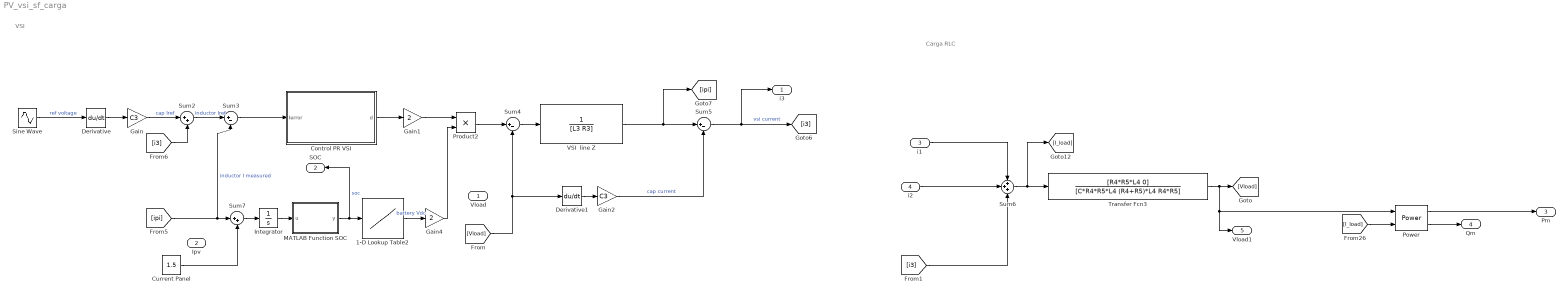
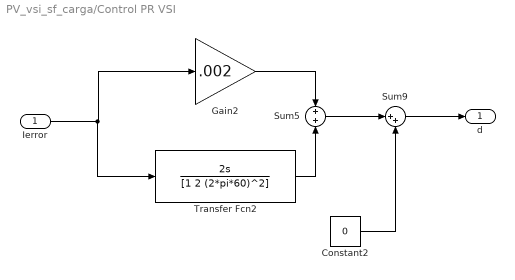
== matlab function PV_vsi_sf_carga/MATLAB Function SOC  ==
function y = fcn(u)

y = -0.03536*u+100;

/*
 * File: PV_vsi_sf_carga.c
 *
 * Code generated for Simulink model 'PV_vsi_sf_carga'.
 *
 * Model version                  : 1.70
 * Simulink Coder version         : 8.12 (R2017a) 16-Feb-2017
 * C/C++ source code generated on : Mon Sep 17 16:17:21 2018
 *
 * Target selection: ert.tlc
 * Embedded hardware selection: Intel->x86-64 (Windows64)
 * Code generation objectives: Unspecified
 * Validation result: Not run
 */

#include "PV_vsi_sf_carga.h"
#include "PV_vsi_sf_carga_private.h"

/* Block signals (auto storage) */
B_PV_vsi_sf_carga_T PV_vsi_sf_carga_B;

/* Continuous states */
X_PV_vsi_sf_carga_T PV_vsi_sf_carga_X;

/* Block states (auto storage) */
DW_PV_vsi_sf_carga_T PV_vsi_sf_carga_DW;

/* External inputs (root inport signals with auto storage) */
ExtU_PV_vsi_sf_carga_T PV_vsi_sf_carga_U;

/* External outputs (root outports fed by signals with auto storage) */
ExtY_PV_vsi_sf_carga_T PV_vsi_sf_carga_Y;

/* Real-time model */
RT_MODEL_PV_vsi_sf_carga_T PV_vsi_sf_carga_M_;
RT_MODEL_PV_vsi_sf_carga_T *const PV_vsi_sf_carga_M = &PV_vsi_sf_carga_M_;

/*
 * Time delay interpolation routine
 *
 * The linear interpolation is performed using the formula:
 *
 *          (t2 - tMinusDelay)         (tMinusDelay - t1)
 * u(t)  =  ----------------- * u1  +  ------------------- * u2
 *              (t2 - t1)                  (t2 - t1)
 */
real_T rt_TDelayInterpolate(
  real_T tMinusDelay,                  /* tMinusDelay = currentSimTime - delay */
  real_T tStart,
  real_T *tBuf,
  real_T *uBuf,
  int_T bufSz,
  int_T *lastIdx,
  int_T oldestIdx,
  int_T newIdx,
  real_T initOutput,
  boolean_T discrete,
  boolean_T minorStepAndTAtLastMajorOutput)
{
  int_T i;
  real_T yout, t1, t2, u1, u2;

  /*
   * If there is only one data point in the buffer, this data point must be
   * the t= 0 and tMinusDelay > t0, it ask for something unknown. The best
   * guess if initial output as well
   */
  if ((newIdx == 0) && (oldestIdx ==0 ) && (tMinusDelay > tStart))
    return initOutput;

  /*
   * If tMinusDelay is less than zero, should output initial value
   */
  if (tMinusDelay <= tStart)
    return initOutput;

  /* For fixed buffer extrapolation:
   * if tMinusDelay is small than the time at oldestIdx, if discrete, output
   * tailptr value,  else use tailptr and tailptr+1 value to extrapolate
   * It is also for fixed buffer. Note: The same condition can happen for transport delay block where
   * use tStart and and t[tail] other than using t[tail] and t[tail+1].
   * See below
   */
  if ((tMinusDelay <= tBuf[oldestIdx] ) ) {
    if (discrete) {
      return(uBuf[oldestIdx]);
    } else {
      int_T tempIdx= oldestIdx + 1;
      if (oldestIdx == bufSz-1)
        tempIdx = 0;
      t1= tBuf[oldestIdx];
      t2= tBuf[tempIdx];
      u1= uBuf[oldestIdx];
      u2= uBuf[tempIdx];
      if (t2 == t1) {
        if (tMinusDelay >= t2) {
          yout = u2;
        } else {
          yout = u1;
        }
      } else {
        real_T f1 = (t2-tMinusDelay) / (t2-t1);
        real_T f2 = 1.0 - f1;

        /*
         * Use Lagrange's interpolation formula.  Exact outputs at t1, t2.
         */
        yout = f1*u1 + f2*u2;
      }

      return yout;
    }
  }

  /*
   * When block does not have direct feedthrough, we use the table of
   * values to extrapolate off the end of the table for delays that are less
   * than 0 (less then step size).  This is not completely accurate.  The
   * chain of events is as follows for a given time t.  Major output - look
   * in table.  Update - add entry to table.  Now, if we call the output at
   * time t again, there is a new entry in the table. For very small delays,
   * this means that we will have a different answer from the previous call
   * to the output fcn at the same time t.  The following code prevents this
   * from happening.
   */
  if (minorStepAndTAtLastMajorOutput) {
    /* pretend that the new entry has not been added to table */
    if (newIdx != 0) {
      if (*lastIdx == newIdx) {
        (*lastIdx)--;
      }

      newIdx--;
    } else {
      if (*lastIdx == newIdx) {
        *lastIdx = bufSz-1;
      }

      newIdx = bufSz - 1;
    }
  }

  i = *lastIdx;
  if (tBuf[i] < tMinusDelay) {
    /* Look forward starting at last index */
    while (tBuf[i] < tMinusDelay) {
      /* May occur if the delay is less than step-size - extrapolate */
      if (i == newIdx)
        break;
      i = ( i < (bufSz-1) ) ? (i+1) : 0;/* move through buffer */
    }
  } else {
    /*
     * Look backwards starting at last index which can happen when the
     * delay time increases.
     */
    while (tBuf[i] >= tMinusDelay) {
      /*
       * Due to the entry condition at top of function, we
       * should never hit the end.
       */
      i = (i > 0) ? i-1 : (bufSz-1);   /* move through buffer */
    }

    i = ( i < (bufSz-1) ) ? (i+1) : 0;
  }

  *lastIdx = i;
  if (discrete) {
    /*
     * tempEps = 128 * eps;
     * localEps = max(tempEps, tempEps*fabs(tBuf[i]))/2;
     */
    double tempEps = (DBL_EPSILON) * 128.0;
    double localEps = tempEps * fabs(tBuf[i]);
    if (tempEps > localEps) {
      localEps = tempEps;
    }

    localEps = localEps / 2.0;
    if (tMinusDelay >= (tBuf[i] - localEps)) {
      yout = uBuf[i];
    } else {
      if (i == 0) {
        yout = uBuf[bufSz-1];
      } else {
        yout = uBuf[i-1];
      }
    }
  } else {
    if (i == 0) {
      t1 = tBuf[bufSz-1];
      u1 = uBuf[bufSz-1];
    } else {
      t1 = tBuf[i-1];
      u1 = uBuf[i-1];
    }

    t2 = tBuf[i];
    u2 = uBuf[i];
    if (t2 == t1) {
      if (tMinusDelay >= t2) {
        yout = u2;
      } else {
        yout = u1;
      }
    } else {
      real_T f1 = (t2-tMinusDelay) / (t2-t1);
      real_T f2 = 1.0 - f1;

      /*
       * Use Lagrange's interpolation formula.  Exact outputs at t1, t2.
       */
      yout = f1*u1 + f2*u2;
    }
  }

  return(yout);
}

real_T look1_binlxpw(real_T u0, const real_T bp0[], const real_T table[],
                     uint32_T maxIndex)
{
  real_T frac;
  uint32_T iRght;
  uint32_T iLeft;
  uint32_T bpIdx;

  /* Lookup 1-D
     Search method: 'binary'
     Use previous index: 'off'
     Interpolation method: 'Linear'
     Extrapolation method: 'Linear'
     Use last breakpoint for index at or above upper limit: 'off'
     Remove protection against out-of-range input in generated code: 'off'
   */
  /* Prelookup - Index and Fraction
     Index Search method: 'binary'
     Extrapolation method: 'Linear'
     Use previous index: 'off'
     Use last breakpoint for index at or above upper limit: 'off'
     Remove protection against out-of-range input in generated code: 'off'
   */
  if (u0 <= bp0[0U]) {
    iLeft = 0U;
    frac = (u0 - bp0[0U]) / (bp0[1U] - bp0[0U]);
  } else if (u0 < bp0[maxIndex]) {
    /* Binary Search */
    bpIdx = maxIndex >> 1U;
    iLeft = 0U;
    iRght = maxIndex;
    while (iRght - iLeft > 1U) {
      if (u0 < bp0[bpIdx]) {
        iRght = bpIdx;
      } else {
        iLeft = bpIdx;
      }

      bpIdx = (iRght + iLeft) >> 1U;
    }

    frac = (u0 - bp0[iLeft]) / (bp0[iLeft + 1U] - bp0[iLeft]);
  } else {
    iLeft = maxIndex - 1U;
    frac = (u0 - bp0[maxIndex - 1U]) / (bp0[maxIndex] - bp0[maxIndex - 1U]);
  }

  /* Interpolation 1-D
     Interpolation method: 'Linear'
     Use last breakpoint for index at or above upper limit: 'off'
     Overflow mode: 'portable wrapping'
   */
  return (table[iLeft + 1U] - table[iLeft]) * frac + table[iLeft];
}

/*
 * This function updates continuous states using the ODE4 fixed-step
 * solver algorithm
 */
static void rt_ertODEUpdateContinuousStates(RTWSolverInfo *si )
{
  time_T t = rtsiGetT(si);
  time_T tnew = rtsiGetSolverStopTime(si);
  time_T h = rtsiGetStepSize(si);
  real_T *x = rtsiGetContStates(si);
  ODE4_IntgData *id = (ODE4_IntgData *)rtsiGetSolverData(si);
  real_T *y = id->y;
  real_T *f0 = id->f[0];
  real_T *f1 = id->f[1];
  real_T *f2 = id->f[2];
  real_T *f3 = id->f[3];
  real_T temp;
  int_T i;
  int_T nXc = 10;
  rtsiSetSimTimeStep(si,MINOR_TIME_STEP);

  /* Save the state values at time t in y, we'll use x as ynew. */
  (void) memcpy(y, x,
                (uint_T)nXc*sizeof(real_T));

  /* Assumes that rtsiSetT and ModelOutputs are up-to-date */
  /* f0 = f(t,y) */
  rtsiSetdX(si, f0);
  PV_vsi_sf_carga_derivatives();

  /* f1 = f(t + (h/2), y + (h/2)*f0) */
  temp = 0.5 * h;
  for (i = 0; i < nXc; i++) {
    x[i] = y[i] + (temp*f0[i]);
  }

  rtsiSetT(si, t + temp);
  rtsiSetdX(si, f1);
  PV_vsi_sf_carga_step();
  PV_vsi_sf_carga_derivatives();

  /* f2 = f(t + (h/2), y + (h/2)*f1) */
  for (i = 0; i < nXc; i++) {
    x[i] = y[i] + (temp*f1[i]);
  }

  rtsiSetdX(si, f2);
  PV_vsi_sf_carga_step();
  PV_vsi_sf_carga_derivatives();

  /* f3 = f(t + h, y + h*f2) */
  for (i = 0; i < nXc; i++) {
    x[i] = y[i] + (h*f2[i]);
  }

  rtsiSetT(si, tnew);
  rtsiSetdX(si, f3);
  PV_vsi_sf_carga_step();
  PV_vsi_sf_carga_derivatives();

  /* tnew = t + h
     ynew = y + (h/6)*(f0 + 2*f1 + 2*f2 + 2*f3) */
  temp = h / 6.0;
  for (i = 0; i < nXc; i++) {
    x[i] = y[i] + temp*(f0[i] + 2.0*f1[i] + 2.0*f2[i] + f3[i]);
  }

  rtsiSetSimTimeStep(si,MAJOR_TIME_STEP);
}

real_T rt_hypotd_snf(real_T u0, real_T u1)
{
  real_T y;
  real_T a;
  a = fabs(u0);
  y = fabs(u1);
  if (a < y) {
    a /= y;
    y *= sqrt(a * a + 1.0);
  } else if (a > y) {
    y /= a;
    y = sqrt(y * y + 1.0) * a;
  } else {
    if (!rtIsNaN(y)) {
      y = a * 1.4142135623730951;
    }
  }

  return y;
}

real_T rt_atan2d_snf(real_T u0, real_T u1)
{
  real_T y;
  int32_T u0_0;
  int32_T u1_0;
  if (rtIsNaN(u0) || rtIsNaN(u1)) {
    y = (rtNaN);
  } else if (rtIsInf(u0) && rtIsInf(u1)) {
    if (u0 > 0.0) {
      u0_0 = 1;
    } else {
      u0_0 = -1;
    }

    if (u1 > 0.0) {
      u1_0 = 1;
    } else {
      u1_0 = -1;
    }

    y = atan2(u0_0, u1_0);
  } else if (u1 == 0.0) {
    if (u0 > 0.0) {
      y = RT_PI / 2.0;
    } else if (u0 < 0.0) {
      y = -(RT_PI / 2.0);
    } else {
      y = 0.0;
    }
  } else {
    y = atan2(u0, u1);
  }

  return y;
}

/* Model step function */
void PV_vsi_sf_carga_step(void)
{
  /* local block i/o variables */
  real_T rtb_integrator;
  real_T rtb_TransportDelay;
  real_T rtb_integrator_m;
  real_T rtb_TransportDelay_g;
  real_T rtb_integrator_e;
  real_T rtb_TransportDelay_d;
  real_T rtb_integrator_o;
  real_T rtb_TransportDelay_e;
  if (rtmIsMajorTimeStep(PV_vsi_sf_carga_M)) {
    /* set solver stop time */
    rtsiSetSolverStopTime(&PV_vsi_sf_carga_M->solverInfo,
                          ((PV_vsi_sf_carga_M->Timing.clockTick0+1)*
      PV_vsi_sf_carga_M->Timing.stepSize0));
  }                                    /* end MajorTimeStep */

  /* Update absolute time of base rate at minor time step */
  if (rtmIsMinorTimeStep(PV_vsi_sf_carga_M)) {
    PV_vsi_sf_carga_M->Timing.t[0] = rtsiGetT(&PV_vsi_sf_carga_M->solverInfo);
  }

  {
    real_T *lastU;
    real_T rtb_vsicurrent;
    real_T rtb_VSIlineZ;
    real_T rtb_y;
    real_T rtb_ComplextoMagnitudeAngle_o1;
    real_T rtb_ComplextoMagnitudeAngle_o2;

    /* TransferFcn: '<Root>/VSI  line Z' */
    rtb_VSIlineZ = 33.333333333333336 * PV_vsi_sf_carga_X.VSIlineZ_CSTATE;

    /* TransferFcn: '<Root>/Transfer Fcn3' */
    PV_vsi_sf_carga_B.TransferFcn3 = 0.0;
    PV_vsi_sf_carga_B.TransferFcn3 += 376.7897513187641 *
      PV_vsi_sf_carga_X.TransferFcn3_CSTATE[0];
    PV_vsi_sf_carga_B.TransferFcn3 += 0.0 *
      PV_vsi_sf_carga_X.TransferFcn3_CSTATE[1];

    /* Derivative: '<Root>/Derivative1' */
    if ((PV_vsi_sf_carga_DW.TimeStampA >= PV_vsi_sf_carga_M->Timing.t[0]) &&
        (PV_vsi_sf_carga_DW.TimeStampB >= PV_vsi_sf_carga_M->Timing.t[0])) {
      rtb_vsicurrent = 0.0;
    } else {
      rtb_ComplextoMagnitudeAngle_o2 = PV_vsi_sf_carga_DW.TimeStampA;
      lastU = &PV_vsi_sf_carga_DW.LastUAtTimeA;
      if (PV_vsi_sf_carga_DW.TimeStampA < PV_vsi_sf_carga_DW.TimeStampB) {
        if (PV_vsi_sf_carga_DW.TimeStampB < PV_vsi_sf_carga_M->Timing.t[0]) {
          rtb_ComplextoMagnitudeAngle_o2 = PV_vsi_sf_carga_DW.TimeStampB;
          lastU = &PV_vsi_sf_carga_DW.LastUAtTimeB;
        }
      } else {
        if (PV_vsi_sf_carga_DW.TimeStampA >= PV_vsi_sf_carga_M->Timing.t[0]) {
          rtb_ComplextoMagnitudeAngle_o2 = PV_vsi_sf_carga_DW.TimeStampB;
          lastU = &PV_vsi_sf_carga_DW.LastUAtTimeB;
        }
      }

      rtb_vsicurrent = (PV_vsi_sf_carga_B.TransferFcn3 - *lastU) /
        (PV_vsi_sf_carga_M->Timing.t[0] - rtb_ComplextoMagnitudeAngle_o2);
    }

    /* End of Derivative: '<Root>/Derivative1' */

    /* Sum: '<Root>/Sum5' incorporates:
     *  Gain: '<Root>/Gain2'
     */
    rtb_vsicurrent = rtb_VSIlineZ - 0.00061 * rtb_vsicurrent;

    /* Outport: '<Root>/i3' */
    PV_vsi_sf_carga_Y.i3 = rtb_vsicurrent;

    /* Integrator: '<Root>/Integrator' */
    /* Limited  Integrator  */
    if (PV_vsi_sf_carga_X.Integrator_CSTATE >= 1.0) {
      PV_vsi_sf_carga_X.Integrator_CSTATE = 1.0;
    } else {
      if (PV_vsi_sf_carga_X.Integrator_CSTATE <= 0.0) {
        PV_vsi_sf_carga_X.Integrator_CSTATE = 0.0;
      }
    }

    /* MATLAB Function: '<Root>/MATLAB Function SOC ' incorporates:
     *  Integrator: '<Root>/Integrator'
     */
    /* MATLAB Function 'MATLAB Function SOC ': '<S2>:1' */
    /* '<S2>:1:3' y = -0.03536*u+100; */
    rtb_y = -0.03536 * PV_vsi_sf_carga_X.Integrator_CSTATE + 100.0;

    /* Outport: '<Root>/SOC' */
    PV_vsi_sf_carga_Y.SOC = rtb_y;

    /* Integrator: '<S9>/integrator' */
    rtb_integrator = PV_vsi_sf_carga_X.integrator_CSTATE;

    /* TransportDelay: '<S9>/Transport Delay' */
    {
      real_T **uBuffer = (real_T**)
        &PV_vsi_sf_carga_DW.TransportDelay_PWORK.TUbufferPtrs[0];
      real_T **tBuffer = (real_T**)
        &PV_vsi_sf_carga_DW.TransportDelay_PWORK.TUbufferPtrs[1];
      real_T simTime = PV_vsi_sf_carga_M->Timing.t[0];
      real_T tMinusDelay = simTime - (0.016666666666666666);
      rtb_TransportDelay = rt_TDelayInterpolate(
        tMinusDelay,
        0.0,
        *tBuffer,
        *uBuffer,
        PV_vsi_sf_carga_DW.TransportDelay_IWORK.CircularBufSize,
        &PV_vsi_sf_carga_DW.TransportDelay_IWORK.Last,
        PV_vsi_sf_carga_DW.TransportDelay_IWORK.Tail,
        PV_vsi_sf_carga_DW.TransportDelay_IWORK.Head,
        0.0,
        0,
        0);
    }

    if (rtmIsMajorTimeStep(PV_vsi_sf_carga_M)) {
      /* Memory: '<S9>/Memory' */
      PV_vsi_sf_carga_B.Memory = PV_vsi_sf_carga_DW.Memory_PreviousInput;
    }

    /* Switch: '<S9>/Switch' incorporates:
     *  Clock: '<S9>/Clock'
     *  Constant: '<S9>/K1'
     *  Gain: '<S9>/Gain'
     *  RelationalOperator: '<S9>/Relational Operator'
     *  Sum: '<S9>/Sum'
     */
    if (PV_vsi_sf_carga_M->Timing.t[0] >= 0.016666666666666666) {
      PV_vsi_sf_carga_B.Switch = (rtb_integrator - rtb_TransportDelay) * 60.0;
    } else {
      PV_vsi_sf_carga_B.Switch = PV_vsi_sf_carga_B.Memory;
    }

    /* End of Switch: '<S9>/Switch' */

    /* Integrator: '<S8>/integrator' */
    rtb_integrator_m = PV_vsi_sf_carga_X.integrator_CSTATE_c;

    /* TransportDelay: '<S8>/Transport Delay' */
    {
      real_T **uBuffer = (real_T**)
        &PV_vsi_sf_carga_DW.TransportDelay_PWORK_g.TUbufferPtrs[0];
      real_T **tBuffer = (real_T**)
        &PV_vsi_sf_carga_DW.TransportDelay_PWORK_g.TUbufferPtrs[1];
      real_T simTime = PV_vsi_sf_carga_M->Timing.t[0];
      real_T tMinusDelay = simTime - (0.016666666666666666);
      rtb_TransportDelay_g = rt_TDelayInterpolate(
        tMinusDelay,
        0.0,
        *tBuffer,
        *uBuffer,
        PV_vsi_sf_carga_DW.TransportDelay_IWORK_n.CircularBufSize,
        &PV_vsi_sf_carga_DW.TransportDelay_IWORK_n.Last,
        PV_vsi_sf_carga_DW.TransportDelay_IWORK_n.Tail,
        PV_vsi_sf_carga_DW.TransportDelay_IWORK_n.Head,
        0.0,
        0,
        0);
    }

    if (rtmIsMajorTimeStep(PV_vsi_sf_carga_M)) {
      /* Memory: '<S8>/Memory' */
      PV_vsi_sf_carga_B.Memory_f = PV_vsi_sf_carga_DW.Memory_PreviousInput_j;
    }

    /* Switch: '<S8>/Switch' incorporates:
     *  Clock: '<S8>/Clock'
     *  Constant: '<S8>/K1'
     *  Gain: '<S8>/Gain'
     *  RelationalOperator: '<S8>/Relational Operator'
     *  Sum: '<S8>/Sum'
     */
    if (PV_vsi_sf_carga_M->Timing.t[0] >= 0.016666666666666666) {
      PV_vsi_sf_carga_B.Switch_c = (rtb_integrator_m - rtb_TransportDelay_g) *
        60.0;
    } else {
      PV_vsi_sf_carga_B.Switch_c = PV_vsi_sf_carga_B.Memory_f;
    }

    /* End of Switch: '<S8>/Switch' */

    /* Integrator: '<S13>/integrator' */
    rtb_integrator_e = PV_vsi_sf_carga_X.integrator_CSTATE_i;

    /* TransportDelay: '<S13>/Transport Delay' */
    {
      real_T **uBuffer = (real_T**)
        &PV_vsi_sf_carga_DW.TransportDelay_PWORK_f.TUbufferPtrs[0];
      real_T **tBuffer = (real_T**)
        &PV_vsi_sf_carga_DW.TransportDelay_PWORK_f.TUbufferPtrs[1];
      real_T simTime = PV_vsi_sf_carga_M->Timing.t[0];
      real_T tMinusDelay = simTime - (0.016666666666666666);
      rtb_TransportDelay_d = rt_TDelayInterpolate(
        tMinusDelay,
        0.0,
        *tBuffer,
        *uBuffer,
        PV_vsi_sf_carga_DW.TransportDelay_IWORK_ng.CircularBufSize,
        &PV_vsi_sf_carga_DW.TransportDelay_IWORK_ng.Last,
        PV_vsi_sf_carga_DW.TransportDelay_IWORK_ng.Tail,
        PV_vsi_sf_carga_DW.TransportDelay_IWORK_ng.Head,
        0.0,
        0,
        0);
    }

    if (rtmIsMajorTimeStep(PV_vsi_sf_carga_M)) {
      /* Memory: '<S13>/Memory' */
      PV_vsi_sf_carga_B.Memory_j = PV_vsi_sf_carga_DW.Memory_PreviousInput_i;
    }

    /* Switch: '<S13>/Switch' incorporates:
     *  Clock: '<S13>/Clock'
     *  Constant: '<S13>/K1'
     *  Gain: '<S13>/Gain'
     *  RelationalOperator: '<S13>/Relational Operator'
     *  Sum: '<S13>/Sum'
     */
    if (PV_vsi_sf_carga_M->Timing.t[0] >= 0.016666666666666666) {
      PV_vsi_sf_carga_B.Switch_k = (rtb_integrator_e - rtb_TransportDelay_d) *
        60.0;
    } else {
      PV_vsi_sf_carga_B.Switch_k = PV_vsi_sf_carga_B.Memory_j;
    }

    /* End of Switch: '<S13>/Switch' */

    /* Integrator: '<S12>/integrator' */
    rtb_integrator_o = PV_vsi_sf_carga_X.integrator_CSTATE_b;

    /* TransportDelay: '<S12>/Transport Delay' */
    {
      real_T **uBuffer = (real_T**)
        &PV_vsi_sf_carga_DW.TransportDelay_PWORK_n.TUbufferPtrs[0];
      real_T **tBuffer = (real_T**)
        &PV_vsi_sf_carga_DW.TransportDelay_PWORK_n.TUbufferPtrs[1];
      real_T simTime = PV_vsi_sf_carga_M->Timing.t[0];
      real_T tMinusDelay = simTime - (0.016666666666666666);
      rtb_TransportDelay_e = rt_TDelayInterpolate(
        tMinusDelay,
        0.0,
        *tBuffer,
        *uBuffer,
        PV_vsi_sf_carga_DW.TransportDelay_IWORK_d.CircularBufSize,
        &PV_vsi_sf_carga_DW.TransportDelay_IWORK_d.Last,
        PV_vsi_sf_carga_DW.TransportDelay_IWORK_d.Tail,
        PV_vsi_sf_carga_DW.TransportDelay_IWORK_d.Head,
        0.0,
        0,
        0);
    }

    if (rtmIsMajorTimeStep(PV_vsi_sf_carga_M)) {
      /* Memory: '<S12>/Memory' */
      PV_vsi_sf_carga_B.Memory_m = PV_vsi_sf_carga_DW.Memory_PreviousInput_n;
    }

    /* Switch: '<S12>/Switch' incorporates:
     *  Clock: '<S12>/Clock'
     *  Constant: '<S12>/K1'
     *  Gain: '<S12>/Gain'
     *  RelationalOperator: '<S12>/Relational Operator'
     *  Sum: '<S12>/Sum'
     */
    if (PV_vsi_sf_carga_M->Timing.t[0] >= 0.016666666666666666) {
      PV_vsi_sf_carga_B.Switch_o = (rtb_integrator_o - rtb_TransportDelay_e) *
        60.0;
    } else {
      PV_vsi_sf_carga_B.Switch_o = PV_vsi_sf_carga_B.Memory_m;
    }

    /* End of Switch: '<S12>/Switch' */

    /* Gain: '<S3>/Gain1' incorporates:
     *  ComplexToMagnitudeAngle: '<S4>/Complex to Magnitude-Angle'
     *  ComplexToMagnitudeAngle: '<S5>/Complex to Magnitude-Angle'
     *  Product: '<S3>/Product'
     *  RealImagToComplex: '<S4>/Real-Imag to Complex'
     *  RealImagToComplex: '<S5>/Real-Imag to Complex'
     */
    rtb_ComplextoMagnitudeAngle_o1 = rt_hypotd_snf(PV_vsi_sf_carga_B.Switch,
      PV_vsi_sf_carga_B.Switch_c) * rt_hypotd_snf(PV_vsi_sf_carga_B.Switch_k,
      PV_vsi_sf_carga_B.Switch_o) * 0.5;

    /* Gain: '<S3>/Deg->Rad' incorporates:
     *  ComplexToMagnitudeAngle: '<S4>/Complex to Magnitude-Angle'
     *  ComplexToMagnitudeAngle: '<S5>/Complex to Magnitude-Angle'
     *  Gain: '<S4>/Rad->Deg.'
     *  Gain: '<S5>/Rad->Deg.'
     *  RealImagToComplex: '<S4>/Real-Imag to Complex'
     *  RealImagToComplex: '<S5>/Real-Imag to Complex'
     *  Sum: '<S3>/Sum'
     */
    rtb_ComplextoMagnitudeAngle_o2 = (57.295779513082323 * rt_atan2d_snf
      (PV_vsi_sf_carga_B.Switch_c, PV_vsi_sf_carga_B.Switch) -
      57.295779513082323 * rt_atan2d_snf(PV_vsi_sf_carga_B.Switch_o,
      PV_vsi_sf_carga_B.Switch_k)) * 0.017453292519943295;

    /* Outport: '<Root>/Pm' incorporates:
     *  Product: '<S3>/Product1'
     *  Trigonometry: '<S3>/Trigonometric Function1'
     */
    PV_vsi_sf_carga_Y.Pm = rtb_ComplextoMagnitudeAngle_o1 * cos
      (rtb_ComplextoMagnitudeAngle_o2);

    /* Outport: '<Root>/Qm' incorporates:
     *  Product: '<S3>/Product3'
     *  Trigonometry: '<S3>/Trigonometric Function2'
     */
    PV_vsi_sf_carga_Y.Qm = rtb_ComplextoMagnitudeAngle_o1 * sin
      (rtb_ComplextoMagnitudeAngle_o2);

    /* Outport: '<Root>/Vload1' */
    PV_vsi_sf_carga_Y.Vload1 = PV_vsi_sf_carga_B.TransferFcn3;

    /* Sin: '<Root>/Sine Wave' */
    PV_vsi_sf_carga_B.refvoltage = sin(376.99111843077515 *
      PV_vsi_sf_carga_M->Timing.t[0]) * 170.0;

    /* Derivative: '<Root>/Derivative' */
    if ((PV_vsi_sf_carga_DW.TimeStampA_e >= PV_vsi_sf_carga_M->Timing.t[0]) &&
        (PV_vsi_sf_carga_DW.TimeStampB_a >= PV_vsi_sf_carga_M->Timing.t[0])) {
      rtb_ComplextoMagnitudeAngle_o1 = 0.0;
    } else {
      rtb_ComplextoMagnitudeAngle_o2 = PV_vsi_sf_carga_DW.TimeStampA_e;
      lastU = &PV_vsi_sf_carga_DW.LastUAtTimeA_n;
      if (PV_vsi_sf_carga_DW.TimeStampA_e < PV_vsi_sf_carga_DW.TimeStampB_a) {
        if (PV_vsi_sf_carga_DW.TimeStampB_a < PV_vsi_sf_carga_M->Timing.t[0]) {
          rtb_ComplextoMagnitudeAngle_o2 = PV_vsi_sf_carga_DW.TimeStampB_a;
          lastU = &PV_vsi_sf_carga_DW.LastUAtTimeB_c;
        }
      } else {
        if (PV_vsi_sf_carga_DW.TimeStampA_e >= PV_vsi_sf_carga_M->Timing.t[0]) {
          rtb_ComplextoMagnitudeAngle_o2 = PV_vsi_sf_carga_DW.TimeStampB_a;
          lastU = &PV_vsi_sf_carga_DW.LastUAtTimeB_c;
        }
      }

      rtb_ComplextoMagnitudeAngle_o1 = (PV_vsi_sf_carga_B.refvoltage - *lastU) /
        (PV_vsi_sf_carga_M->Timing.t[0] - rtb_ComplextoMagnitudeAngle_o2);
    }

    /* End of Derivative: '<Root>/Derivative' */

    /* Sum: '<Root>/Sum3' incorporates:
     *  Gain: '<Root>/Gain'
     *  Sum: '<Root>/Sum2'
     */
    PV_vsi_sf_carga_B.Sum3 = (0.00061 * rtb_ComplextoMagnitudeAngle_o1 +
      rtb_vsicurrent) - rtb_VSIlineZ;

    /* Product: '<S4>/Product' incorporates:
     *  Sin: '<S4>/sin(wt)'
     */
    PV_vsi_sf_carga_B.Product = sin(376.99111843077515 *
      PV_vsi_sf_carga_M->Timing.t[0]) * 2.0 * PV_vsi_sf_carga_B.TransferFcn3;

    /* Product: '<S4>/Product1' incorporates:
     *  Sin: '<S4>/cos(wt)'
     */
    PV_vsi_sf_carga_B.Product1 = sin(376.99111843077515 *
      PV_vsi_sf_carga_M->Timing.t[0] + 1.5707963267948966) * 2.0 *
      PV_vsi_sf_carga_B.TransferFcn3;

    /* Sum: '<Root>/Sum6' incorporates:
     *  Inport: '<Root>/i1'
     *  Inport: '<Root>/i2'
     */
    PV_vsi_sf_carga_B.Sum6 = (PV_vsi_sf_carga_U.i1 + PV_vsi_sf_carga_U.i2) +
      rtb_vsicurrent;

    /* Product: '<S5>/Product' incorporates:
     *  Sin: '<S5>/sin(wt)'
     */
    PV_vsi_sf_carga_B.Product_c = sin(376.99111843077515 *
      PV_vsi_sf_carga_M->Timing.t[0]) * 2.0 * PV_vsi_sf_carga_B.Sum6;

    /* Product: '<S5>/Product1' incorporates:
     *  Sin: '<S5>/cos(wt)'
     */
    PV_vsi_sf_carga_B.Product1_g = sin(376.99111843077515 *
      PV_vsi_sf_carga_M->Timing.t[0] + 1.5707963267948966) * 2.0 *
      PV_vsi_sf_carga_B.Sum6;

    /* Sum: '<Root>/Sum4' incorporates:
     *  Gain: '<Root>/Gain1'
     *  Gain: '<Root>/Gain4'
     *  Gain: '<S1>/Gain2'
     *  Lookup_n-D: '<Root>/1-D Lookup Table2'
     *  Product: '<Root>/Product2'
     *  Sum: '<S1>/Sum5'
     *  TransferFcn: '<S1>/Transfer Fcn2'
     */
    PV_vsi_sf_carga_B.Sum4 = ((2.0 * PV_vsi_sf_carga_X.TransferFcn2_CSTATE[0] +
      0.0 * PV_vsi_sf_carga_X.TransferFcn2_CSTATE[1]) + 0.002 *
      PV_vsi_sf_carga_B.Sum3) * 2.0 * (2.0 * look1_binlxpw(rtb_y,
      PV_vsi_sf_carga_ConstP.uDLookupTable2_bp01Data,
      PV_vsi_sf_carga_ConstP.uDLookupTable2_tableData, 8U)) -
      PV_vsi_sf_carga_B.TransferFcn3;

    /* Sum: '<Root>/Sum7' incorporates:
     *  Constant: '<Root>/Current Panel'
     */
    PV_vsi_sf_carga_B.Sum7 = rtb_VSIlineZ + 1.5;
  }

  if (rtmIsMajorTimeStep(PV_vsi_sf_carga_M)) {
    real_T *lastU;

    /* Update for Derivative: '<Root>/Derivative1' */
    if (PV_vsi_sf_carga_DW.TimeStampA == (rtInf)) {
      PV_vsi_sf_carga_DW.TimeStampA = PV_vsi_sf_carga_M->Timing.t[0];
      lastU = &PV_vsi_sf_carga_DW.LastUAtTimeA;
    } else if (PV_vsi_sf_carga_DW.TimeStampB == (rtInf)) {
      PV_vsi_sf_carga_DW.TimeStampB = PV_vsi_sf_carga_M->Timing.t[0];
      lastU = &PV_vsi_sf_carga_DW.LastUAtTimeB;
    } else if (PV_vsi_sf_carga_DW.TimeStampA < PV_vsi_sf_carga_DW.TimeStampB) {
      PV_vsi_sf_carga_DW.TimeStampA = PV_vsi_sf_carga_M->Timing.t[0];
      lastU = &PV_vsi_sf_carga_DW.LastUAtTimeA;
    } else {
      PV_vsi_sf_carga_DW.TimeStampB = PV_vsi_sf_carga_M->Timing.t[0];
      lastU = &PV_vsi_sf_carga_DW.LastUAtTimeB;
    }

    *lastU = PV_vsi_sf_carga_B.TransferFcn3;

    /* End of Update for Derivative: '<Root>/Derivative1' */

    /* Update for TransportDelay: '<S9>/Transport Delay' */
    {
      real_T **uBuffer = (real_T**)
        &PV_vsi_sf_carga_DW.TransportDelay_PWORK.TUbufferPtrs[0];
      real_T **tBuffer = (real_T**)
        &PV_vsi_sf_carga_DW.TransportDelay_PWORK.TUbufferPtrs[1];
      real_T simTime = PV_vsi_sf_carga_M->Timing.t[0];
      PV_vsi_sf_carga_DW.TransportDelay_IWORK.Head =
        ((PV_vsi_sf_carga_DW.TransportDelay_IWORK.Head <
          (PV_vsi_sf_carga_DW.TransportDelay_IWORK.CircularBufSize-1)) ?
         (PV_vsi_sf_carga_DW.TransportDelay_IWORK.Head+1) : 0);
      if (PV_vsi_sf_carga_DW.TransportDelay_IWORK.Head ==
          PV_vsi_sf_carga_DW.TransportDelay_IWORK.Tail) {
        PV_vsi_sf_carga_DW.TransportDelay_IWORK.Tail =
          ((PV_vsi_sf_carga_DW.TransportDelay_IWORK.Tail <
            (PV_vsi_sf_carga_DW.TransportDelay_IWORK.CircularBufSize-1)) ?
           (PV_vsi_sf_carga_DW.TransportDelay_IWORK.Tail+1) : 0);
      }

      (*tBuffer)[PV_vsi_sf_carga_DW.TransportDelay_IWORK.Head] = simTime;
      (*uBuffer)[PV_vsi_sf_carga_DW.TransportDelay_IWORK.Head] = rtb_integrator;
    }

    if (rtmIsMajorTimeStep(PV_vsi_sf_carga_M)) {
      /* Update for Memory: '<S9>/Memory' */
      PV_vsi_sf_carga_DW.Memory_PreviousInput = PV_vsi_sf_carga_B.Switch;
    }

    /* Update for TransportDelay: '<S8>/Transport Delay' */
    {
      real_T **uBuffer = (real_T**)
        &PV_vsi_sf_carga_DW.TransportDelay_PWORK_g.TUbufferPtrs[0];
      real_T **tBuffer = (real_T**)
        &PV_vsi_sf_carga_DW.TransportDelay_PWORK_g.TUbufferPtrs[1];
      real_T simTime = PV_vsi_sf_carga_M->Timing.t[0];
      PV_vsi_sf_carga_DW.TransportDelay_IWORK_n.Head =
        ((PV_vsi_sf_carga_DW.TransportDelay_IWORK_n.Head <
          (PV_vsi_sf_carga_DW.TransportDelay_IWORK_n.CircularBufSize-1)) ?
         (PV_vsi_sf_carga_DW.TransportDelay_IWORK_n.Head+1) : 0);
      if (PV_vsi_sf_carga_DW.TransportDelay_IWORK_n.Head ==
          PV_vsi_sf_carga_DW.TransportDelay_IWORK_n.Tail) {
        PV_vsi_sf_carga_DW.TransportDelay_IWORK_n.Tail =
          ((PV_vsi_sf_carga_DW.TransportDelay_IWORK_n.Tail <
            (PV_vsi_sf_carga_DW.TransportDelay_IWORK_n.CircularBufSize-1)) ?
           (PV_vsi_sf_carga_DW.TransportDelay_IWORK_n.Tail+1) : 0);
      }

      (*tBuffer)[PV_vsi_sf_carga_DW.TransportDelay_IWORK_n.Head] = simTime;
      (*uBuffer)[PV_vsi_sf_carga_DW.TransportDelay_IWORK_n.Head] =
        rtb_integrator_m;
    }

    if (rtmIsMajorTimeStep(PV_vsi_sf_carga_M)) {
      /* Update for Memory: '<S8>/Memory' */
      PV_vsi_sf_carga_DW.Memory_PreviousInput_j = PV_vsi_sf_carga_B.Switch_c;
    }

    /* Update for TransportDelay: '<S13>/Transport Delay' */
    {
      real_T **uBuffer = (real_T**)
        &PV_vsi_sf_carga_DW.TransportDelay_PWORK_f.TUbufferPtrs[0];
      real_T **tBuffer = (real_T**)
        &PV_vsi_sf_carga_DW.TransportDelay_PWORK_f.TUbufferPtrs[1];
      real_T simTime = PV_vsi_sf_carga_M->Timing.t[0];
      PV_vsi_sf_carga_DW.TransportDelay_IWORK_ng.Head =
        ((PV_vsi_sf_carga_DW.TransportDelay_IWORK_ng.Head <
          (PV_vsi_sf_carga_DW.TransportDelay_IWORK_ng.CircularBufSize-1)) ?
         (PV_vsi_sf_carga_DW.TransportDelay_IWORK_ng.Head+1) : 0);
      if (PV_vsi_sf_carga_DW.TransportDelay_IWORK_ng.Head ==
          PV_vsi_sf_carga_DW.TransportDelay_IWORK_ng.Tail) {
        PV_vsi_sf_carga_DW.TransportDelay_IWORK_ng.Tail =
          ((PV_vsi_sf_carga_DW.TransportDelay_IWORK_ng.Tail <
            (PV_vsi_sf_carga_DW.TransportDelay_IWORK_ng.CircularBufSize-1)) ?
           (PV_vsi_sf_carga_DW.TransportDelay_IWORK_ng.Tail+1) : 0);
      }

      (*tBuffer)[PV_vsi_sf_carga_DW.TransportDelay_IWORK_ng.Head] = simTime;
      (*uBuffer)[PV_vsi_sf_carga_DW.TransportDelay_IWORK_ng.Head] =
        rtb_integrator_e;
    }

    if (rtmIsMajorTimeStep(PV_vsi_sf_carga_M)) {
      /* Update for Memory: '<S13>/Memory' */
      PV_vsi_sf_carga_DW.Memory_PreviousInput_i = PV_vsi_sf_carga_B.Switch_k;
    }

    /* Update for TransportDelay: '<S12>/Transport Delay' */
    {
      real_T **uBuffer = (real_T**)
        &PV_vsi_sf_carga_DW.TransportDelay_PWORK_n.TUbufferPtrs[0];
      real_T **tBuffer = (real_T**)
        &PV_vsi_sf_carga_DW.TransportDelay_PWORK_n.TUbufferPtrs[1];
      real_T simTime = PV_vsi_sf_carga_M->Timing.t[0];
      PV_vsi_sf_carga_DW.TransportDelay_IWORK_d.Head =
        ((PV_vsi_sf_carga_DW.TransportDelay_IWORK_d.Head <
          (PV_vsi_sf_carga_DW.TransportDelay_IWORK_d.CircularBufSize-1)) ?
         (PV_vsi_sf_carga_DW.TransportDelay_IWORK_d.Head+1) : 0);
      if (PV_vsi_sf_carga_DW.TransportDelay_IWORK_d.Head ==
          PV_vsi_sf_carga_DW.TransportDelay_IWORK_d.Tail) {
        PV_vsi_sf_carga_DW.TransportDelay_IWORK_d.Tail =
          ((PV_vsi_sf_carga_DW.TransportDelay_IWORK_d.Tail <
            (PV_vsi_sf_carga_DW.TransportDelay_IWORK_d.CircularBufSize-1)) ?
           (PV_vsi_sf_carga_DW.TransportDelay_IWORK_d.Tail+1) : 0);
      }

      (*tBuffer)[PV_vsi_sf_carga_DW.TransportDelay_IWORK_d.Head] = simTime;
      (*uBuffer)[PV_vsi_sf_carga_DW.TransportDelay_IWORK_d.Head] =
        rtb_integrator_o;
    }

    if (rtmIsMajorTimeStep(PV_vsi_sf_carga_M)) {
      /* Update for Memory: '<S12>/Memory' */
      PV_vsi_sf_carga_DW.Memory_PreviousInput_n = PV_vsi_sf_carga_B.Switch_o;
    }

    /* Update for Derivative: '<Root>/Derivative' */
    if (PV_vsi_sf_carga_DW.TimeStampA_e == (rtInf)) {
      PV_vsi_sf_carga_DW.TimeStampA_e = PV_vsi_sf_carga_M->Timing.t[0];
      lastU = &PV_vsi_sf_carga_DW.LastUAtTimeA_n;
    } else if (PV_vsi_sf_carga_DW.TimeStampB_a == (rtInf)) {
      PV_vsi_sf_carga_DW.TimeStampB_a = PV_vsi_sf_carga_M->Timing.t[0];
      lastU = &PV_vsi_sf_carga_DW.LastUAtTimeB_c;
    } else if (PV_vsi_sf_carga_DW.TimeStampA_e < PV_vsi_sf_carga_DW.TimeStampB_a)
    {
      PV_vsi_sf_carga_DW.TimeStampA_e = PV_vsi_sf_carga_M->Timing.t[0];
      lastU = &PV_vsi_sf_carga_DW.LastUAtTimeA_n;
    } else {
      PV_vsi_sf_carga_DW.TimeStampB_a = PV_vsi_sf_carga_M->Timing.t[0];
      lastU = &PV_vsi_sf_carga_DW.LastUAtTimeB_c;
    }

    *lastU = PV_vsi_sf_carga_B.refvoltage;

    /* End of Update for Derivative: '<Root>/Derivative' */
  }                                    /* end MajorTimeStep */

  if (rtmIsMajorTimeStep(PV_vsi_sf_carga_M)) {
    rt_ertODEUpdateContinuousStates(&PV_vsi_sf_carga_M->solverInfo);

    /* Update absolute time for base rate */
    /* The "clockTick0" counts the number of times the code of this task has
     * been executed. The absolute time is the multiplication of "clockTick0"
     * and "Timing.stepSize0". Size of "clockTick0" ensures timer will not
     * overflow during the application lifespan selected.
     */
    ++PV_vsi_sf_carga_M->Timing.clockTick0;
    PV_vsi_sf_carga_M->Timing.t[0] = rtsiGetSolverStopTime
      (&PV_vsi_sf_carga_M->solverInfo);

    {
      /* Update absolute timer for sample time: [0.0001s, 0.0s] */
      /* The "clockTick1" counts the number of times the code of this task has
       * been executed. The resolution of this integer timer is 0.0001, which is the step size
       * of the task. Size of "clockTick1" ensures timer will not overflow during the
       * application lifespan selected.
       */
      PV_vsi_sf_carga_M->Timing.clockTick1++;
    }
  }                                    /* end MajorTimeStep */
}
